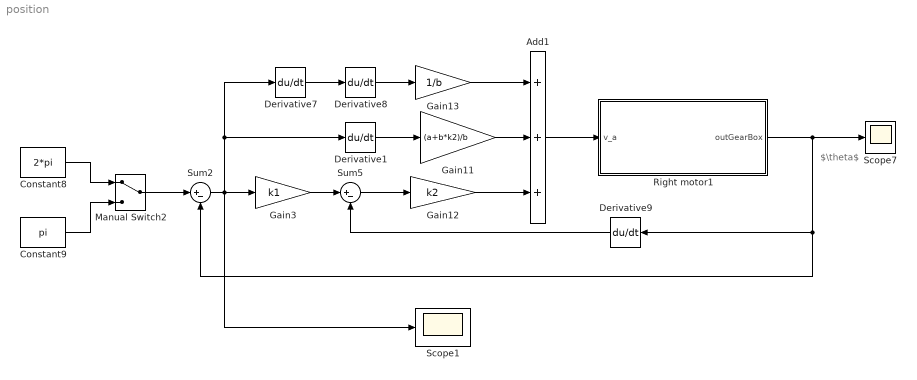
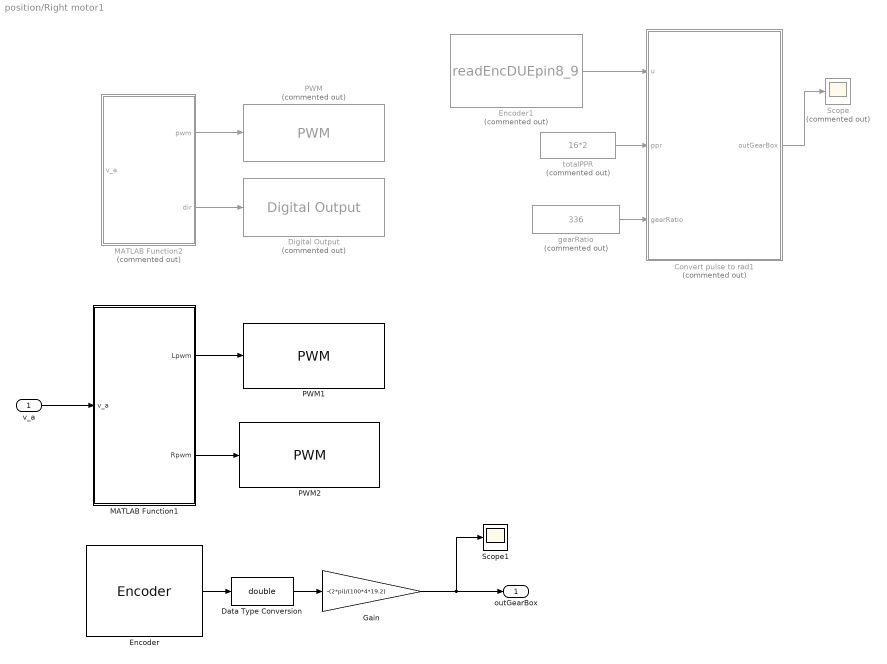
== matlab function position/Right motor1/Convert pulse to rad1 ==
function outGearBox = fcn(u,ppr,gearRatio)

persistent counter_num over_flag
if(isempty(counter_num)), counter_num = 0;end
if(isempty(over_flag)), over_flag = 0;end
pulse2radian = 2*pi/ppr; % 1 pulse = ?? radian

if(double(u) - counter_num > 40000), over_flag = over_flag-1;
elseif(double(u) - counter_num < -40000), over_flag = over_flag+1;
end

inGearBox = (double(u)+over_flag*(2^32 -1))*pulse2radian; 
outGearBox = inGearBox/gearRatio;
counter_num = double(u) ;

== matlab function position/Right motor1/MATLAB Function1 ==
function [Lpwm,Rpwm] = fcn(v_a)

vmax = 22.9;
pwm_cal = v_a*254/vmax;

if pwm_cal > 0
    Lpwm = 0;
    Rpwm = pwm_cal;
elseif pwm_cal < 0
    Lpwm = abs(pwm_cal);
    Rpwm = 0;
else
    Lpwm = 0;
    Rpwm = 0;
end

== matlab function position/Right motor1/MATLAB Function2 ==
function [pwm,dir] = fcn(v_a)

vmax = 22.9;
%vmax = 10;
pwm_cal = v_a*254/vmax;
if pwm_cal > 0
    pwm = pwm_cal;
    dir = 0;
elseif pwm_cal < 0
    pwm = abs(pwm_cal);
    dir = 1;
else
    pwm = 0;
    dir = 0;
end

/*
 * File: position.c
 *
 * Code generated for Simulink model 'position'.
 *
 * Model version                  : 1.5
 * Simulink Coder version         : 9.7 (R2022a) 13-Nov-2021
 * C/C++ source code generated on : Mon Jun  5 17:03:28 2023
 *
 * Target selection: ert.tlc
 * Embedded hardware selection: ARM Compatible->ARM Cortex
 * Code generation objectives: Unspecified
 * Validation result: Not run
 */

#include "position.h"
#include "rtwtypes.h"
#include <math.h>
#include "position_types.h"
#include "rt_nonfinite.h"
#include "position_private.h"

/* Block signals (default storage) */
B_position_T position_B;

/* Block states (default storage) */
DW_position_T position_DW;

/* Real-time model */
static RT_MODEL_position_T position_M_;
RT_MODEL_position_T *const position_M = &position_M_;
static void rate_monotonic_scheduler(void);

/*
 * Set which subrates need to run this base step (base rate always runs).
 * This function must be called prior to calling the model step function
 * in order to remember which rates need to run this base step.  The
 * buffering of events allows for overlapping preemption.
 */
void position_SetEventsForThisBaseStep(boolean_T *eventFlags)
{
  /* Task runs when its counter is zero, computed via rtmStepTask macro */
  eventFlags[2] = ((boolean_T)rtmStepTask(position_M, 2));
}

/*
 *         This function updates active task flag for each subrate
 *         and rate transition flags for tasks that exchange data.
 *         The function assumes rate-monotonic multitasking scheduler.
 *         The function must be called at model base rate so that
 *         the generated code self-manages all its subrates and rate
 *         transition flags.
 */
static void rate_monotonic_scheduler(void)
{
  /* To ensure a deterministic data transfer between two rates,
   * data is transferred at the priority of a fast task and the frequency
   * of the slow task.  The following flags indicate when the data transfer
   * happens.  That is, a rate interaction flag is set true when both rates
   * will run, and false otherwise.
   */

  /* tid 1 shares data with slower tid rate: 2 */
  if (position_M->Timing.TaskCounters.TID[1] == 0) {
    position_M->Timing.RateInteraction.TID1_2 =
      (position_M->Timing.TaskCounters.TID[2] == 0);
  }

  /* Compute which subrates run during the next base time step.  Subrates
   * are an integer multiple of the base rate counter.  Therefore, the subtask
   * counter is reset when it reaches its limit (zero means run).
   */
  (position_M->Timing.TaskCounters.TID[2])++;
  if ((position_M->Timing.TaskCounters.TID[2]) > 9) {/* Sample time: [0.01s, 0.0s] */
    position_M->Timing.TaskCounters.TID[2] = 0;
  }
}

/* Model step function for TID0 */
void position_step0(void)              /* Sample time: [0.0s, 0.0s] */
{
  {                                    /* Sample time: [0.0s, 0.0s] */
    rate_monotonic_scheduler();
  }

  {
    codertarget_arduinobase_int_h_T *obj;
    real_T pwm_cal;
    real_T rtb_Derivative9;
    real_T rtb_Gain11;
    real_T rtb_Gain13;
    real_T *lastU;

    /* RateTransition generated from: '<Root>/Sum2' */
    if (position_M->Timing.RateInteraction.TID1_2) {
      /* RateTransition generated from: '<Root>/Sum2' */
      position_B.TmpRTBAtSum2Inport2 = position_DW.TmpRTBAtSum2Inport2_Buffer0;
    }

    /* End of RateTransition generated from: '<Root>/Sum2' */

    /* ManualSwitch: '<Root>/Manual Switch2' incorporates:
     *  Constant: '<Root>/Constant8'
     *  Constant: '<Root>/Constant9'
     */
    if (position_P.ManualSwitch2_CurrentSetting == 1) {
      pwm_cal = position_P.Constant8_Value;
    } else {
      pwm_cal = position_P.Constant9_Value;
    }

    /* End of ManualSwitch: '<Root>/Manual Switch2' */

    /* Sum: '<Root>/Sum2' */
    position_B.Sum2 = pwm_cal - position_B.TmpRTBAtSum2Inport2;

    /* Derivative: '<Root>/Derivative7' incorporates:
     *  Derivative: '<Root>/Derivative1'
     *  Derivative: '<Root>/Derivative8'
     *  Derivative: '<Root>/Derivative9'
     */
    pwm_cal = position_M->Timing.t[0];
    if ((position_DW.TimeStampA >= pwm_cal) && (position_DW.TimeStampB >=
         pwm_cal)) {
      /* Derivative: '<Root>/Derivative7' */
      position_B.Derivative7 = 0.0;
    } else {
      rtb_Derivative9 = position_DW.TimeStampA;
      lastU = &position_DW.LastUAtTimeA;
      if (position_DW.TimeStampA < position_DW.TimeStampB) {
        if (position_DW.TimeStampB < pwm_cal) {
          rtb_Derivative9 = position_DW.TimeStampB;
          lastU = &position_DW.LastUAtTimeB;
        }
      } else if (position_DW.TimeStampA >= pwm_cal) {
        rtb_Derivative9 = position_DW.TimeStampB;
        lastU = &position_DW.LastUAtTimeB;
      }

      /* Derivative: '<Root>/Derivative7' */
      position_B.Derivative7 = (position_B.Sum2 - *lastU) / (pwm_cal -
        rtb_Derivative9);
    }

    /* End of Derivative: '<Root>/Derivative7' */

    /* Derivative: '<Root>/Derivative8' */
    if ((position_DW.TimeStampA_a >= pwm_cal) && (position_DW.TimeStampB_c >=
         pwm_cal)) {
      rtb_Derivative9 = 0.0;
    } else {
      rtb_Derivative9 = position_DW.TimeStampA_a;
      lastU = &position_DW.LastUAtTimeA_k;
      if (position_DW.TimeStampA_a < position_DW.TimeStampB_c) {
        if (position_DW.TimeStampB_c < pwm_cal) {
          rtb_Derivative9 = position_DW.TimeStampB_c;
          lastU = &position_DW.LastUAtTimeB_h;
        }
      } else if (position_DW.TimeStampA_a >= pwm_cal) {
        rtb_Derivative9 = position_DW.TimeStampB_c;
        lastU = &position_DW.LastUAtTimeB_h;
      }

      rtb_Derivative9 = (position_B.Derivative7 - *lastU) / (pwm_cal -
        rtb_Derivative9);
    }

    /* Gain: '<Root>/Gain13' */
    rtb_Gain13 = 1.0 / position_P.b * rtb_Derivative9;

    /* Derivative: '<Root>/Derivative1' */
    if ((position_DW.TimeStampA_i >= pwm_cal) && (position_DW.TimeStampB_cf >=
         pwm_cal)) {
      rtb_Derivative9 = 0.0;
    } else {
      rtb_Derivative9 = position_DW.TimeStampA_i;
      lastU = &position_DW.LastUAtTimeA_c;
      if (position_DW.TimeStampA_i < position_DW.TimeStampB_cf) {
        if (position_DW.TimeStampB_cf < pwm_cal) {
          rtb_Derivative9 = position_DW.TimeStampB_cf;
          lastU = &position_DW.LastUAtTimeB_b;
        }
      } else if (position_DW.TimeStampA_i >= pwm_cal) {
        rtb_Derivative9 = position_DW.TimeStampB_cf;
        lastU = &position_DW.LastUAtTimeB_b;
      }

      rtb_Derivative9 = (position_B.Sum2 - *lastU) / (pwm_cal - rtb_Derivative9);
    }

    /* Gain: '<Root>/Gain11' */
    rtb_Gain11 = (position_P.b * position_P.k2 + position_P.a) / position_P.b *
      rtb_Derivative9;

    /* RateTransition generated from: '<Root>/Derivative9' */
    if (position_M->Timing.RateInteraction.TID1_2) {
      /* RateTransition generated from: '<Root>/Derivative9' */
      position_B.TmpRTBAtDerivative9Inport1 =
        position_DW.TmpRTBAtDerivative9Inport1_Buff;
    }

    /* End of RateTransition generated from: '<Root>/Derivative9' */

    /* Derivative: '<Root>/Derivative9' */
    if ((position_DW.TimeStampA_b >= pwm_cal) && (position_DW.TimeStampB_e >=
         pwm_cal)) {
      rtb_Derivative9 = 0.0;
    } else {
      rtb_Derivative9 = position_DW.TimeStampA_b;
      lastU = &position_DW.LastUAtTimeA_c0;
      if (position_DW.TimeStampA_b < position_DW.TimeStampB_e) {
        if (position_DW.TimeStampB_e < pwm_cal) {
          rtb_Derivative9 = position_DW.TimeStampB_e;
          lastU = &position_DW.LastUAtTimeB_e;
        }
      } else if (position_DW.TimeStampA_b >= pwm_cal) {
        rtb_Derivative9 = position_DW.TimeStampB_e;
        lastU = &position_DW.LastUAtTimeB_e;
      }

      rtb_Derivative9 = (position_B.TmpRTBAtDerivative9Inport1 - *lastU) /
        (pwm_cal - rtb_Derivative9);
    }

    /* MATLAB Function: '<S1>/MATLAB Function1' incorporates:
     *  Gain: '<Root>/Gain12'
     *  Gain: '<Root>/Gain3'
     *  Sum: '<Root>/Add1'
     *  Sum: '<Root>/Sum5'
     */
    pwm_cal = ((position_P.k1 * position_B.Sum2 - rtb_Derivative9) *
               position_P.k2 + (rtb_Gain13 + rtb_Gain11)) * 254.0 / 22.9;
    if (pwm_cal > 0.0) {
      rtb_Gain13 = 0.0;
    } else if (pwm_cal < 0.0) {
      rtb_Gain13 = fabs(pwm_cal);
      pwm_cal = 0.0;
    } else {
      rtb_Gain13 = 0.0;
      pwm_cal = 0.0;
    }

    /* End of MATLAB Function: '<S1>/MATLAB Function1' */

    /* MATLABSystem: '<S1>/PWM1' */
    obj = &position_DW.obj_o;
    obj->PWMDriverObj.MW_PWM_HANDLE = MW_PWM_GetHandle(6U);
    if (!(rtb_Gain13 <= 255.0)) {
      rtb_Gain13 = 255.0;
    }

    MW_PWM_SetDutyCycle(position_DW.obj_o.PWMDriverObj.MW_PWM_HANDLE, rtb_Gain13);

    /* End of MATLABSystem: '<S1>/PWM1' */

    /* MATLABSystem: '<S1>/PWM2' */
    obj = &position_DW.obj_h;
    obj->PWMDriverObj.MW_PWM_HANDLE = MW_PWM_GetHandle(7U);
    if (!(pwm_cal <= 255.0)) {
      pwm_cal = 255.0;
    }

    MW_PWM_SetDutyCycle(position_DW.obj_h.PWMDriverObj.MW_PWM_HANDLE, pwm_cal);

    /* End of MATLABSystem: '<S1>/PWM2' */
  }

  {
    real_T *lastU;

    /* Update for Derivative: '<Root>/Derivative7' */
    if (position_DW.TimeStampA == (rtInf)) {
      position_DW.TimeStampA = position_M->Timing.t[0];
      lastU = &position_DW.LastUAtTimeA;
    } else if (position_DW.TimeStampB == (rtInf)) {
      position_DW.TimeStampB = position_M->Timing.t[0];
      lastU = &position_DW.LastUAtTimeB;
    } else if (position_DW.TimeStampA < position_DW.TimeStampB) {
      position_DW.TimeStampA = position_M->Timing.t[0];
      lastU = &position_DW.LastUAtTimeA;
    } else {
      position_DW.TimeStampB = position_M->Timing.t[0];
      lastU = &position_DW.LastUAtTimeB;
    }

    *lastU = position_B.Sum2;

    /* End of Update for Derivative: '<Root>/Derivative7' */

    /* Update for Derivative: '<Root>/Derivative8' */
    if (position_DW.TimeStampA_a == (rtInf)) {
      position_DW.TimeStampA_a = position_M->Timing.t[0];
      lastU = &position_DW.LastUAtTimeA_k;
    } else if (position_DW.TimeStampB_c == (rtInf)) {
      position_DW.TimeStampB_c = position_M->Timing.t[0];
      lastU = &position_DW.LastUAtTimeB_h;
    } else if (position_DW.TimeStampA_a < position_DW.TimeStampB_c) {
      position_DW.TimeStampA_a = position_M->Timing.t[0];
      lastU = &position_DW.LastUAtTimeA_k;
    } else {
      position_DW.TimeStampB_c = position_M->Timing.t[0];
      lastU = &position_DW.LastUAtTimeB_h;
    }

    *lastU = position_B.Derivative7;

    /* End of Update for Derivative: '<Root>/Derivative8' */

    /* Update for Derivative: '<Root>/Derivative1' */
    if (position_DW.TimeStampA_i == (rtInf)) {
      position_DW.TimeStampA_i = position_M->Timing.t[0];
      lastU = &position_DW.LastUAtTimeA_c;
    } else if (position_DW.TimeStampB_cf == (rtInf)) {
      position_DW.TimeStampB_cf = position_M->Timing.t[0];
      lastU = &position_DW.LastUAtTimeB_b;
    } else if (position_DW.TimeStampA_i < position_DW.TimeStampB_cf) {
      position_DW.TimeStampA_i = position_M->Timing.t[0];
      lastU = &position_DW.LastUAtTimeA_c;
    } else {
      position_DW.TimeStampB_cf = position_M->Timing.t[0];
      lastU = &position_DW.LastUAtTimeB_b;
    }

    *lastU = position_B.Sum2;

    /* End of Update for Derivative: '<Root>/Derivative1' */

    /* Update for Derivative: '<Root>/Derivative9' */
    if (position_DW.TimeStampA_b == (rtInf)) {
      position_DW.TimeStampA_b = position_M->Timing.t[0];
      lastU = &position_DW.LastUAtTimeA_c0;
    } else if (position_DW.TimeStampB_e == (rtInf)) {
      position_DW.TimeStampB_e = position_M->Timing.t[0];
      lastU = &position_DW.LastUAtTimeB_e;
    } else if (position_DW.TimeStampA_b < position_DW.TimeStampB_e) {
      position_DW.TimeStampA_b = position_M->Timing.t[0];
      lastU = &position_DW.LastUAtTimeA_c0;
    } else {
      position_DW.TimeStampB_e = position_M->Timing.t[0];
      lastU = &position_DW.LastUAtTimeB_e;
    }

    *lastU = position_B.TmpRTBAtDerivative9Inport1;

    /* End of Update for Derivative: '<Root>/Derivative9' */
  }

  /* Update absolute time */
  /* The "clockTick0" counts the number of times the code of this task has
   * been executed. The absolute time is the multiplication of "clockTick0"
   * and "Timing.stepSize0". Size of "clockTick0" ensures timer will not
   * overflow during the application lifespan selected.
   */
  position_M->Timing.t[0] =
    ((time_T)(++position_M->Timing.clockTick0)) * position_M->Timing.stepSize0;

  /* Update absolute time */
  /* The "clockTick1" counts the number of times the code of this task has
   * been executed. The resolution of this integer timer is 0.001, which is the step size
   * of the task. Size of "clockTick1" ensures timer will not overflow during the
   * application lifespan selected.
   */
  position_M->Timing.clockTick1++;
}

/* Model step function for TID2 */
void position_step2(void)              /* Sample time: [0.01s, 0.0s] */
{
  int32_T rtb_Encoder_0;

  /* MATLABSystem: '<S1>/Encoder' */
  if (position_DW.obj.SampleTime != position_P.Encoder_SampleTime) {
    position_DW.obj.SampleTime = position_P.Encoder_SampleTime;
  }

  if (position_DW.obj.TunablePropsChanged) {
    position_DW.obj.TunablePropsChanged = false;
  }

  MW_EncoderRead(position_DW.obj.Index, &rtb_Encoder_0);

  /* Gain: '<S1>/Gain' incorporates:
   *  DataTypeConversion: '<S1>/Data Type Conversion'
   *  MATLABSystem: '<S1>/Encoder'
   */
  position_B.Gain = position_P.Gain_Gain * (real_T)rtb_Encoder_0;

  /* RateTransition generated from: '<Root>/Derivative9' */
  position_DW.TmpRTBAtDerivative9Inport1_Buff = position_B.Gain;

  /* RateTransition generated from: '<Root>/Sum2' */
  position_DW.TmpRTBAtSum2Inport2_Buffer0 = position_B.Gain;

  /* Update absolute time */
  /* The "clockTick2" counts the number of times the code of this task has
   * been executed. The resolution of this integer timer is 0.01, which is the step size
   * of the task. Size of "clockTick2" ensures timer will not overflow during the
   * application lifespan selected.
   */
  position_M->Timing.clockTick2++;
}
